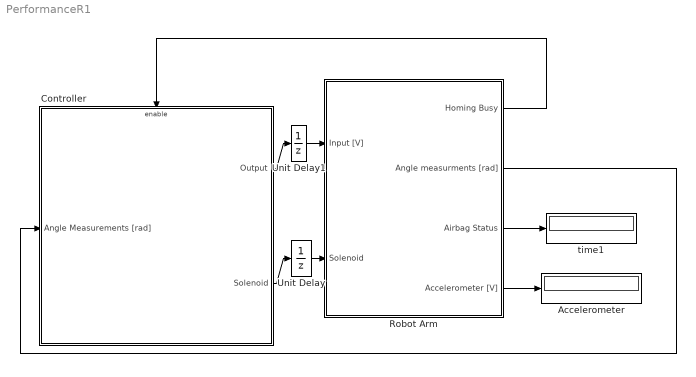
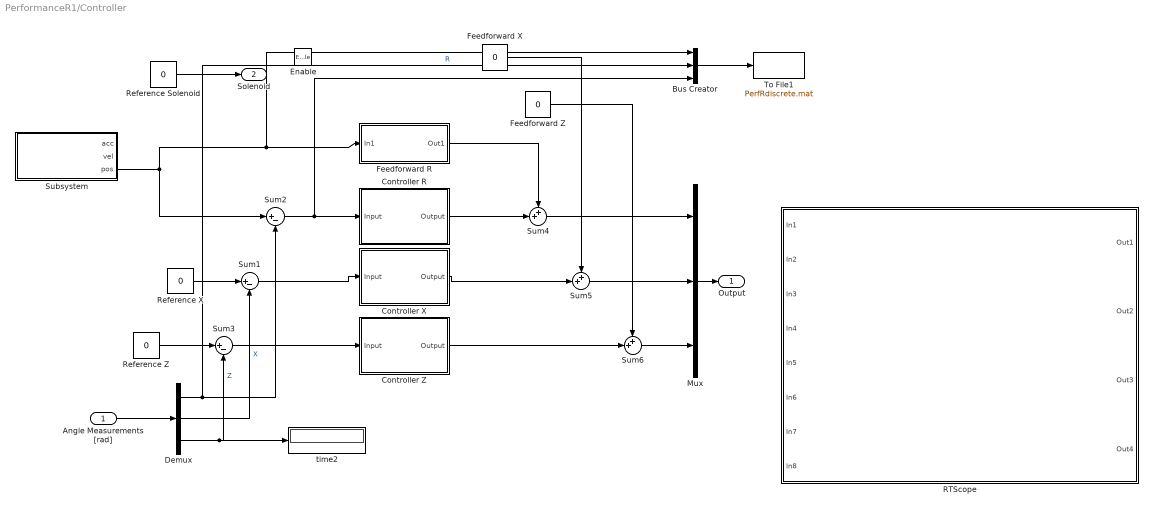
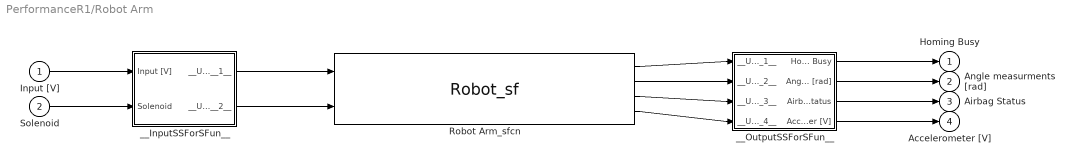
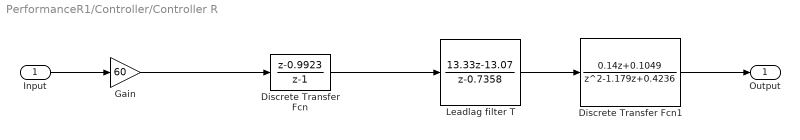
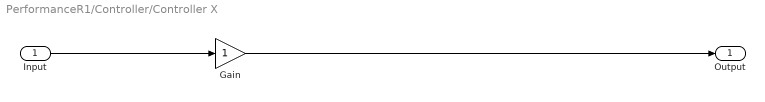
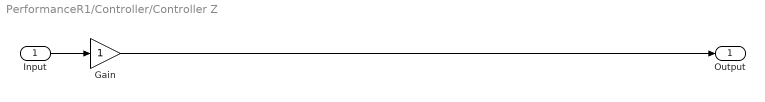
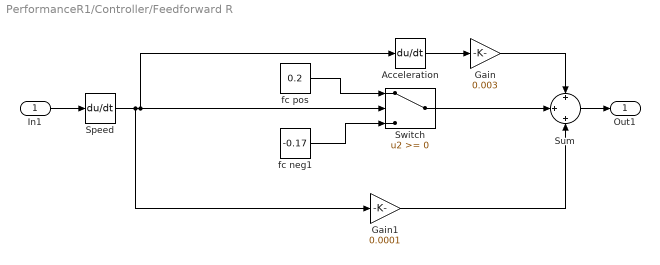
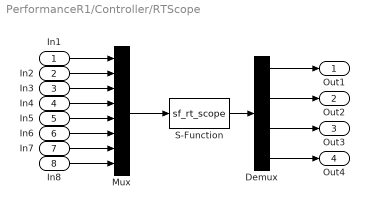
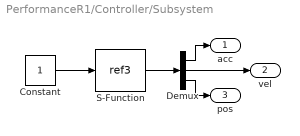
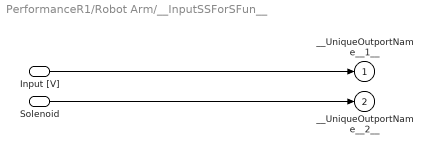
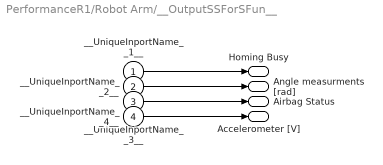
/*
 * PerformanceR1.c
 *
 * Code generation for model "PerformanceR1.mdl".
 *
 * Model version              : 1.931
 * Simulink Coder version : 8.1 (R2011b) 08-Jul-2011
 * C source code generated on : Mon Mar  7 18:53:11 2016
 *
 * Target selection: ectarget.tlc
 * Note: GRT includes extra infrastructure and instrumentation for prototyping
 * Embedded hardware selection: 32-bit Generic
 * Code generation objectives: Unspecified
 * Validation result: Not run
 */
#include "PerformanceR1.h"
#include "PerformanceR1_private.h"
#include "PerformanceR1_dt.h"
#undef S_FUNCTION_NAME
#if !defined(RTW_GENERATED_SFCN_TUNABLE_PRMS_Robot_sf)
#define RTW_GENERATED_SFCN_TUNABLE_PRMS_Robot_sf
#endif

#include "Robot_sf.h"

const real_T PerformanceR1_RGND = 0.0; /* real_T ground */

/* Block signals (auto storage) */
BlockIO_PerformanceR1 PerformanceR1_B;

/* Block states (auto storage) */
D_Work_PerformanceR1 PerformanceR1_DWork;

/* Real-time model */
RT_MODEL_PerformanceR1 PerformanceR1_M_;
RT_MODEL_PerformanceR1 *const PerformanceR1_M = &PerformanceR1_M_;

/*
 * Writes out MAT-file header.  Returns success or failure.
 * Returns:
 *      0 - success
 *      1 - failure
 */
int_T rt_WriteMat4FileHeader(FILE *fp, int32_T m, int32_T n, const char *name)
{
  typedef enum { ELITTLE_ENDIAN, EBIG_ENDIAN } ByteOrder;

  int16_T one = 1;
  ByteOrder byteOrder = (*((int8_T *)&one)==1) ? ELITTLE_ENDIAN : EBIG_ENDIAN;
  int32_T type = (byteOrder == ELITTLE_ENDIAN) ? 0: 1000;
  int32_T imagf = 0;
  int32_T name_len = strlen(name) + 1;
  if ((fwrite(&type, sizeof(int32_T), 1, fp) == 0) ||
      (fwrite(&m, sizeof(int32_T), 1, fp) == 0) ||
      (fwrite(&n, sizeof(int32_T), 1, fp) == 0) ||
      (fwrite(&imagf, sizeof(int32_T), 1, fp) == 0) ||
      (fwrite(&name_len, sizeof(int32_T), 1, fp) == 0) ||
      (fwrite(name, sizeof(char), name_len, fp) == 0)) {
    return(1);
  } else {
    return(0);
  }
}                                      /* end rt_WriteMat4FileHeader */

/* Model output function */
void PerformanceR1_output(int_T tid)
{
  /* local block i/o variables */
  real_T rtb_TmpSignalConversionAtToFile[3];
  real_T rtb_Switch;
  real_T rtb_Gain;
  real_T rtb_Gain_l;
  real_T rtb_Gain_c;

  /* Reset subsysRan breadcrumbs */
  srClearBC(PerformanceR1_DWork.Controller_SubsysRanBC);

  /* UnitDelay: '<Root>/Unit Delay1' */
  /* RTWBLOCK_START_COMMENT */
  PerformanceR1_B.UnitDelay1[0] = PerformanceR1_DWork.UnitDelay1_DSTATE[0];
  PerformanceR1_B.UnitDelay1[1] = PerformanceR1_DWork.UnitDelay1_DSTATE[1];
  PerformanceR1_B.UnitDelay1[2] = PerformanceR1_DWork.UnitDelay1_DSTATE[2];

  /* UnitDelay: '<Root>/Unit Delay' */
  PerformanceR1_B.UnitDelay = PerformanceR1_DWork.UnitDelay_DSTATE;

  /* RTW Generated Level2 S-Function Block: '<S2>/Robot Arm_sfcn' (Robot_sf) */
  {
    SimStruct *rts = PerformanceR1_M->childSfunctions[2];
    sfcnOutputs(rts, 0);
  }

  /* Outputs for Enabled SubSystem: '<Root>/Controller' incorporates:
   *  EnablePort: '<S1>/Enable'
   */
  if (PerformanceR1_B.RobotArm_sfcn_o1 > 0.0) {
    if (!PerformanceR1_DWork.Controller_MODE) {
      PerformanceR1_DWork.Controller_MODE = TRUE;
    }
  } else {
    if (PerformanceR1_DWork.Controller_MODE) {
      PerformanceR1_DWork.Controller_MODE = FALSE;
    }
  }

  if (PerformanceR1_DWork.Controller_MODE) {
    /* Level2 S-Function Block: '<S8>/S-Function' (ref3) */
    {
      SimStruct *rts = PerformanceR1_M->childSfunctions[0];
      sfcnOutputs(rts, 0);
    }

    /* Sum: '<S1>/Sum2' */
    PerformanceR1_B.Sum2 = PerformanceR1_B.SFunction[2] -
      PerformanceR1_B.RobotArm_sfcn_o2[0];

    /* SignalConversion: '<S1>/TmpSignal ConversionAtTo File1Inport1' */
    rtb_TmpSignalConversionAtToFile[0] = PerformanceR1_B.SFunction[2];
    rtb_TmpSignalConversionAtToFile[1] = PerformanceR1_B.RobotArm_sfcn_o2[0];
    rtb_TmpSignalConversionAtToFile[2] = PerformanceR1_B.Sum2;

    /* ToFile: '<S1>/To File1' */
    if (!(++PerformanceR1_DWork.ToFile1_IWORK.Decimation % 1) &&
        (PerformanceR1_DWork.ToFile1_IWORK.Count*4)+1 < 100000000 ) {
      FILE *fp = (FILE *) PerformanceR1_DWork.ToFile1_PWORK.FilePtr;
      if (fp != (NULL)) {
        real_T u[4];
        PerformanceR1_DWork.ToFile1_IWORK.Decimation = 0;
        u[0] = PerformanceR1_M->Timing.t[1];
        u[1] = rtb_TmpSignalConversionAtToFile[0];
        u[2] = rtb_TmpSignalConversionAtToFile[1];
        u[3] = rtb_TmpSignalConversionAtToFile[2];
        if (fwrite(u, sizeof(real_T), 4, fp) != 4) {
          rtmSetErrorStatus(PerformanceR1_M,
                            "Error writing to MAT-file PerfRdiscrete.mat");
          return;
        }

        if (((++PerformanceR1_DWork.ToFile1_IWORK.Count)*4)+1 >= 100000000) {
          (void)fprintf(stdout,
                        "*** The ToFile block will stop logging data before\n"
                        "    the simulation has ended, because it has reached\n"
                        "    the maximum number of elements (100000000)\n"
                        "    allowed in MAT-file PerfRdiscrete.mat.\n");
        }
      }
    }

    /* Gain: '<S3>/Gain' */
    PerformanceR1_B.Gain = PerformanceR1_P.Gain_Gain * PerformanceR1_B.Sum2;

    /* DiscreteTransferFcn: '<S3>/Discrete Transfer Fcn' */
    PerformanceR1_DWork.DiscreteTransferFcn_tmp = (PerformanceR1_B.Gain -
      PerformanceR1_P.DiscreteTransferFcn_Denominator[1] *
      PerformanceR1_DWork.DiscreteTransferFcn_DSTATE) /
      PerformanceR1_P.DiscreteTransferFcn_Denominator[0];
    PerformanceR1_B.DiscreteTransferFcn =
      PerformanceR1_P.DiscreteTransferFcn_Numerator[0] *
      PerformanceR1_DWork.DiscreteTransferFcn_tmp +
      PerformanceR1_P.DiscreteTransferFcn_Numerator[1] *
      PerformanceR1_DWork.DiscreteTransferFcn_DSTATE;

    /* DiscreteTransferFcn: '<S3>/Discrete Transfer Fcn1' */
    PerformanceR1_B.DiscreteTransferFcn1 =
      PerformanceR1_P.DiscreteTransferFcn1_Numerator[0] *
      PerformanceR1_DWork.DiscreteTransferFcn1_DSTATE[0] +
      PerformanceR1_P.DiscreteTransferFcn1_Numerator[1] *
      PerformanceR1_DWork.DiscreteTransferFcn1_DSTATE[1];

    /* DiscreteTransferFcn: '<S3>/Leadlag filter T' */
    PerformanceR1_DWork.LeadlagfilterT_tmp =
      (PerformanceR1_B.DiscreteTransferFcn -
       PerformanceR1_P.LeadlagfilterT_Denominator[1] *
       PerformanceR1_DWork.LeadlagfilterT_DSTATE) /
      PerformanceR1_P.LeadlagfilterT_Denominator[0];
    PerformanceR1_B.LeadlagfilterT = PerformanceR1_P.LeadlagfilterT_Numerator[0]
      * PerformanceR1_DWork.LeadlagfilterT_tmp +
      PerformanceR1_P.LeadlagfilterT_Numerator[1] *
      PerformanceR1_DWork.LeadlagfilterT_DSTATE;

    /* Gain: '<S4>/Gain' incorporates:
     *  Constant: '<S1>/Reference X'
     *  Sum: '<S1>/Sum1'
     */
    rtb_Gain = (PerformanceR1_P.ReferenceX_Value -
                PerformanceR1_B.RobotArm_sfcn_o2[1]) *
      PerformanceR1_P.Gain_Gain_g;

    /* Gain: '<S5>/Gain' incorporates:
     *  Constant: '<S1>/Reference Z'
     *  Sum: '<S1>/Sum3'
     */
    rtb_Gain_l = (PerformanceR1_P.ReferenceZ_Value -
                  PerformanceR1_B.RobotArm_sfcn_o2[2]) *
      PerformanceR1_P.Gain_Gain_c;

    /* Derivative: '<S6>/Speed' */
    {
      real_T t = PerformanceR1_M->Timing.t[0];
      real_T timeStampA = PerformanceR1_DWork.Speed_RWORK.TimeStampA;
      real_T timeStampB = PerformanceR1_DWork.Speed_RWORK.TimeStampB;
      real_T *lastU = &PerformanceR1_DWork.Speed_RWORK.LastUAtTimeA;
      if (timeStampA >= t && timeStampB >= t) {
        PerformanceR1_B.Speed = 0.0;
      } else {
        real_T deltaT;
        real_T lastTime = timeStampA;
        if (timeStampA < timeStampB) {
          if (timeStampB < t) {
            lastTime = timeStampB;
            lastU = &PerformanceR1_DWork.Speed_RWORK.LastUAtTimeB;
          }
        } else if (timeStampA >= t) {
          lastTime = timeStampB;
          lastU = &PerformanceR1_DWork.Speed_RWORK.LastUAtTimeB;
        }

        deltaT = t - lastTime;
        PerformanceR1_B.Speed = (PerformanceR1_B.SFunction[2] - *lastU++) /
          deltaT;
      }
    }

    /* Derivative: '<S6>/Acceleration' */
    {
      real_T t = PerformanceR1_M->Timing.t[0];
      real_T timeStampA = PerformanceR1_DWork.Acceleration_RWORK.TimeStampA;
      real_T timeStampB = PerformanceR1_DWork.Acceleration_RWORK.TimeStampB;
      real_T *lastU = &PerformanceR1_DWork.Acceleration_RWORK.LastUAtTimeA;
      if (timeStampA >= t && timeStampB >= t) {
        rtb_Switch = 0.0;
      } else {
        real_T deltaT;
        real_T lastTime = timeStampA;
        if (timeStampA < timeStampB) {
          if (timeStampB < t) {
            lastTime = timeStampB;
            lastU = &PerformanceR1_DWork.Acceleration_RWORK.LastUAtTimeB;
          }
        } else if (timeStampA >= t) {
          lastTime = timeStampB;
          lastU = &PerformanceR1_DWork.Acceleration_RWORK.LastUAtTimeB;
        }

        deltaT = t - lastTime;
        rtb_Switch = (PerformanceR1_B.Speed - *lastU++) / deltaT;
      }
    }

    /* Gain: '<S6>/Gain' */
    rtb_Gain_c = PerformanceR1_P.Gain_Gain_f * rtb_Switch;

    /* Switch: '<S6>/Switch' incorporates:
     *  Constant: '<S6>/fc neg1'
     *  Constant: '<S6>/fc pos'
     */
    if (PerformanceR1_B.Speed >= PerformanceR1_P.Switch_Threshold) {
      rtb_Switch = PerformanceR1_P.fcpos_Value;
    } else {
      rtb_Switch = PerformanceR1_P.fcneg1_Value;
    }

    /* End of Switch: '<S6>/Switch' */

    /* Sum: '<S1>/Sum4' incorporates:
     *  Gain: '<S6>/Gain1'
     *  Sum: '<S6>/Sum'
     */
    PerformanceR1_B.Sum4 = ((rtb_Gain_c + rtb_Switch) +
      PerformanceR1_P.Gain1_Gain * PerformanceR1_B.Speed) +
      PerformanceR1_B.DiscreteTransferFcn1;

    /* Sum: '<S1>/Sum5' incorporates:
     *  Constant: '<S1>/Feedforward X'
     */
    PerformanceR1_B.Sum5 = PerformanceR1_P.FeedforwardX_Value + rtb_Gain;

    /* Sum: '<S1>/Sum6' incorporates:
     *  Constant: '<S1>/Feedforward Z'
     */
    PerformanceR1_B.Sum6 = PerformanceR1_P.FeedforwardZ_Value + rtb_Gain_l;

    /* Constant: '<S1>/Reference Solenoid' */
    PerformanceR1_B.ReferenceSolenoid = PerformanceR1_P.ReferenceSolenoid_Value;

    /* Level2 S-Function Block: '<S7>/S-Function' (sf_rt_scope) */
    {
      SimStruct *rts = PerformanceR1_M->childSfunctions[1];
      sfcnOutputs(rts, 0);
    }

    srUpdateBC(PerformanceR1_DWork.Controller_SubsysRanBC);
  }

  /* End of Outputs for SubSystem: '<Root>/Controller' */

  /* tid is required for a uniform function interface.
   * Argument tid is not used in the function. */
  UNUSED_PARAMETER(tid);
}

/* Model update function */
void PerformanceR1_update(int_T tid)
{
  real_T denAccum;

  /* Update for UnitDelay: '<Root>/Unit Delay1' */
  PerformanceR1_DWork.UnitDelay1_DSTATE[0] = PerformanceR1_B.Sum4;
  PerformanceR1_DWork.UnitDelay1_DSTATE[1] = PerformanceR1_B.Sum5;
  PerformanceR1_DWork.UnitDelay1_DSTATE[2] = PerformanceR1_B.Sum6;

  /* Update for UnitDelay: '<Root>/Unit Delay' */
  PerformanceR1_DWork.UnitDelay_DSTATE = PerformanceR1_B.ReferenceSolenoid;

  /* RTW Generated Level2 S-Function Block: '<S2>/Robot Arm_sfcn' (Robot_sf) */
  {
    SimStruct *rts = PerformanceR1_M->childSfunctions[2];
    sfcnUpdate(rts, 0);
    if (ssGetErrorStatus(rts) != (NULL))
      return;
  }

  /* Update for Enabled SubSystem: '<Root>/Controller' incorporates:
   *  Update for EnablePort: '<S1>/Enable'
   */
  if (PerformanceR1_DWork.Controller_MODE) {
    /* Update for DiscreteTransferFcn: '<S3>/Discrete Transfer Fcn' */
    PerformanceR1_DWork.DiscreteTransferFcn_DSTATE =
      PerformanceR1_DWork.DiscreteTransferFcn_tmp;

    /* Update for DiscreteTransferFcn: '<S3>/Discrete Transfer Fcn1' */
    denAccum = ((PerformanceR1_B.LeadlagfilterT -
                 PerformanceR1_P.DiscreteTransferFcn1_Denominato[1] *
                 PerformanceR1_DWork.DiscreteTransferFcn1_DSTATE[0]) -
                PerformanceR1_P.DiscreteTransferFcn1_Denominato[2] *
                PerformanceR1_DWork.DiscreteTransferFcn1_DSTATE[1]) /
      PerformanceR1_P.DiscreteTransferFcn1_Denominato[0];
    PerformanceR1_DWork.DiscreteTransferFcn1_DSTATE[1] =
      PerformanceR1_DWork.DiscreteTransferFcn1_DSTATE[0];
    PerformanceR1_DWork.DiscreteTransferFcn1_DSTATE[0] = denAccum;

    /* Update for DiscreteTransferFcn: '<S3>/Leadlag filter T' */
    PerformanceR1_DWork.LeadlagfilterT_DSTATE =
      PerformanceR1_DWork.LeadlagfilterT_tmp;

    /* Update for Derivative: '<S6>/Speed' */
    {
      real_T timeStampA = PerformanceR1_DWork.Speed_RWORK.TimeStampA;
      real_T timeStampB = PerformanceR1_DWork.Speed_RWORK.TimeStampB;
      real_T* lastTime = &PerformanceR1_DWork.Speed_RWORK.TimeStampA;
      real_T* lastU = &PerformanceR1_DWork.Speed_RWORK.LastUAtTimeA;
      if (timeStampA != rtInf) {
        if (timeStampB == rtInf) {
          lastTime = &PerformanceR1_DWork.Speed_RWORK.TimeStampB;
          lastU = &PerformanceR1_DWork.Speed_RWORK.LastUAtTimeB;
        } else if (timeStampA >= timeStampB) {
          lastTime = &PerformanceR1_DWork.Speed_RWORK.TimeStampB;
          lastU = &PerformanceR1_DWork.Speed_RWORK.LastUAtTimeB;
        }
      }

      *lastTime = PerformanceR1_M->Timing.t[0];
      *lastU++ = PerformanceR1_B.SFunction[2];
    }

    /* Update for Derivative: '<S6>/Acceleration' */
    {
      real_T timeStampA = PerformanceR1_DWork.Acceleration_RWORK.TimeStampA;
      real_T timeStampB = PerformanceR1_DWork.Acceleration_RWORK.TimeStampB;
      real_T* lastTime = &PerformanceR1_DWork.Acceleration_RWORK.TimeStampA;
      real_T* lastU = &PerformanceR1_DWork.Acceleration_RWORK.LastUAtTimeA;
      if (timeStampA != rtInf) {
        if (timeStampB == rtInf) {
          lastTime = &PerformanceR1_DWork.Acceleration_RWORK.TimeStampB;
          lastU = &PerformanceR1_DWork.Acceleration_RWORK.LastUAtTimeB;
        } else if (timeStampA >= timeStampB) {
          lastTime = &PerformanceR1_DWork.Acceleration_RWORK.TimeStampB;
          lastU = &PerformanceR1_DWork.Acceleration_RWORK.LastUAtTimeB;
        }
      }

      *lastTime = PerformanceR1_M->Timing.t[0];
      *lastU++ = PerformanceR1_B.Speed;
    }
  }

  /* End of Update for SubSystem: '<Root>/Controller' */

  /* Update absolute time for base rate */
  /* The "clockTick0" counts the number of times the code of this task has
   * been executed. The absolute time is the multiplication of "clockTick0"
   * and "Timing.stepSize0". Size of "clockTick0" ensures timer will not
   * overflow during the application lifespan selected.
   * Timer of this task consists of two 32 bit unsigned integers.
   * The two integers represent the low bits Timing.clockTick0 and the high bits
   * Timing.clockTickH0. When the low bit overflows to 0, the high bits increment.
   */
  if (!(++PerformanceR1_M->Timing.clockTick0)) {
    ++PerformanceR1_M->Timing.clockTickH0;
  }

  PerformanceR1_M->Timing.t[0] = PerformanceR1_M->Timing.clockTick0 *
    PerformanceR1_M->Timing.stepSize0 + PerformanceR1_M->Timing.clockTickH0 *
    PerformanceR1_M->Timing.stepSize0 * 4294967296.0;

  {
    /* Update absolute timer for sample time: [0.000244140625s, 0.0s] */
    /* The "clockTick1" counts the number of times the code of this task has
     * been executed. The absolute time is the multiplication of "clockTick1"
     * and "Timing.stepSize1". Size of "clockTick1" ensures timer will not
     * overflow during the application lifespan selected.
     * Timer of this task consists of two 32 bit unsigned integers.
     * The two integers represent the low bits Timing.clockTick1 and the high bits
     * Timing.clockTickH1. When the low bit overflows to 0, the high bits increment.
     */
    if (!(++PerformanceR1_M->Timing.clockTick1)) {
      ++PerformanceR1_M->Timing.clockTickH1;
    }

    PerformanceR1_M->Timing.t[1] = PerformanceR1_M->Timing.clockTick1 *
      PerformanceR1_M->Timing.stepSize1 + PerformanceR1_M->Timing.clockTickH1 *
      PerformanceR1_M->Timing.stepSize1 * 4294967296.0;
  }

  /* tid is required for a uniform function interface.
   * Argument tid is not used in the function. */
  UNUSED_PARAMETER(tid);
}
